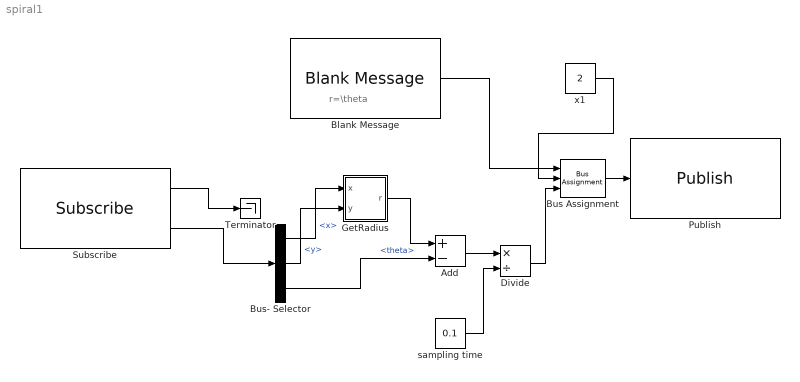
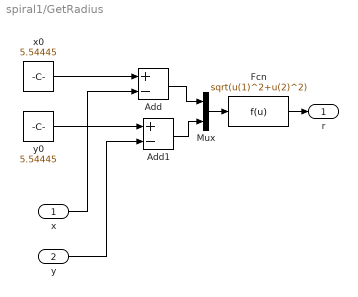
//
// Academic License - for use in teaching, academic research, and meeting
// course requirements at degree granting institutions only.  Not for
// government, commercial, or other organizational use.
//
// File: spiral1.cpp
//
// Code generated for Simulink model 'spiral1'.
//
// Model version                  : 1.1
// Simulink Coder version         : 24.2 (R2024b) 21-Jun-2024
// C/C++ source code generated on : Fri Jan 10 16:53:49 2025
//
// Target selection: ert.tlc
// Embedded hardware selection: Intel->x86-64 (Linux 64)
// Code generation objectives: Unspecified
// Validation result: Not run
//
#include "spiral1.h"
#include "spiral1_types.h"
#include <string.h>
#include "spiral1_private.h"
#include <math.h>
#include "rtwtypes.h"
#include "rmw/qos_profiles.h"
#include <stddef.h>

extern "C"
{

#include "rt_nonfinite.h"

}

real_T rt_powd_snf(real_T u0, real_T u1)
{
  real_T y;
  if (rtIsNaN(u0) || rtIsNaN(u1)) {
    y = (rtNaN);
  } else {
    real_T tmp;
    real_T tmp_0;
    tmp = fabs(u0);
    tmp_0 = fabs(u1);
    if (rtIsInf(u1)) {
      if (tmp == 1.0) {
        y = 1.0;
      } else if (tmp > 1.0) {
        if (u1 > 0.0) {
          y = (rtInf);
        } else {
          y = 0.0;
        }
      } else if (u1 > 0.0) {
        y = 0.0;
      } else {
        y = (rtInf);
      }
    } else if (tmp_0 == 0.0) {
      y = 1.0;
    } else if (tmp_0 == 1.0) {
      if (u1 > 0.0) {
        y = u0;
      } else {
        y = 1.0 / u0;
      }
    } else if (u1 == 2.0) {
      y = u0 * u0;
    } else if ((u1 == 0.5) && (u0 >= 0.0)) {
      y = sqrt(u0);
    } else if ((u0 < 0.0) && (u1 > floor(u1))) {
      y = (rtNaN);
    } else {
      y = pow(u0, u1);
    }
  }

  return y;
}

void spiral1::spiral1_Subscriber_setupImpl(const ros_slros2_internal_block_Sub_T
  *obj)
{
  rmw_qos_profile_t qos_profile;
  sJ4ih70VmKcvCeguWN0mNVF lifespan;
  sJ4ih70VmKcvCeguWN0mNVF liveliness_lease_duration;
  char_T b_zeroDelimTopic[14];
  static const char_T b_zeroDelimTopic_0[14] = "/turtle1/pose";
  qos_profile = rmw_qos_profile_default;

  // Start for MATLABSystem: '<S4>/SourceBlock'
  spiral1_B.deadline.sec = 0.0;
  spiral1_B.deadline.nsec = 0.0;
  lifespan.sec = 0.0;
  lifespan.nsec = 0.0;
  liveliness_lease_duration.sec = 0.0;
  liveliness_lease_duration.nsec = 0.0;
  SET_QOS_VALUES(qos_profile, RMW_QOS_POLICY_HISTORY_KEEP_LAST, (size_t)1.0,
                 RMW_QOS_POLICY_DURABILITY_VOLATILE,
                 RMW_QOS_POLICY_RELIABILITY_RELIABLE, spiral1_B.deadline,
                 lifespan, RMW_QOS_POLICY_LIVELINESS_AUTOMATIC,
                 liveliness_lease_duration, (bool)
                 obj->QOSAvoidROSNamespaceConventions);
  for (int32_T i = 0; i < 14; i++) {
    // Start for MATLABSystem: '<S4>/SourceBlock'
    b_zeroDelimTopic[i] = b_zeroDelimTopic_0[i];
  }

  Sub_spiral1_4.createSubscriber(&b_zeroDelimTopic[0], qos_profile);
}

void spiral1::spiral1_Publisher_setupImpl(const ros_slros2_internal_block_Pub_T *
  obj)
{
  rmw_qos_profile_t qos_profile;
  sJ4ih70VmKcvCeguWN0mNVF deadline;
  sJ4ih70VmKcvCeguWN0mNVF lifespan;
  sJ4ih70VmKcvCeguWN0mNVF liveliness_lease_duration;
  static const char_T b_zeroDelimTopic[17] = "/turtle1/cmd_vel";
  qos_profile = rmw_qos_profile_default;

  // Start for MATLABSystem: '<S3>/SinkBlock'
  deadline.sec = 0.0;
  deadline.nsec = 0.0;
  lifespan.sec = 0.0;
  lifespan.nsec = 0.0;
  liveliness_lease_duration.sec = 0.0;
  liveliness_lease_duration.nsec = 0.0;
  SET_QOS_VALUES(qos_profile, RMW_QOS_POLICY_HISTORY_KEEP_LAST, (size_t)1.0,
                 RMW_QOS_POLICY_DURABILITY_VOLATILE,
                 RMW_QOS_POLICY_RELIABILITY_RELIABLE, deadline, lifespan,
                 RMW_QOS_POLICY_LIVELINESS_AUTOMATIC, liveliness_lease_duration,
                 (bool)obj->QOSAvoidROSNamespaceConventions);
  for (int32_T i = 0; i < 17; i++) {
    // Start for MATLABSystem: '<S3>/SinkBlock'
    spiral1_B.b_zeroDelimTopic[i] = b_zeroDelimTopic[i];
  }

  Pub_spiral1_9.createPublisher(&spiral1_B.b_zeroDelimTopic[0], qos_profile);
}

// Model step function
void spiral1::step()
{
  SL_Bus_geometry_msgs_Pose2D rtb_SourceBlock_o2_0;
  boolean_T b_varargout_1;

  // BusAssignment: '<Root>/Bus Assignment'
  memset(&spiral1_B.BusAssignment, 0, sizeof(SL_Bus_geometry_msgs_Twist));

  // MATLABSystem: '<S4>/SourceBlock'
  b_varargout_1 = Sub_spiral1_4.getLatestMessage(&rtb_SourceBlock_o2_0);

  // Outputs for Enabled SubSystem: '<S4>/Enabled Subsystem' incorporates:
  //   EnablePort: '<S5>/Enable'

  // Start for MATLABSystem: '<S4>/SourceBlock'
  if (b_varargout_1) {
    // SignalConversion generated from: '<S5>/In1'
    spiral1_B.In1 = rtb_SourceBlock_o2_0;
  }

  // End of Start for MATLABSystem: '<S4>/SourceBlock'
  // End of Outputs for SubSystem: '<S4>/Enabled Subsystem'

  // BusAssignment: '<Root>/Bus Assignment' incorporates:
  //   Constant: '<Root>/sampling time'
  //   Constant: '<Root>/x1'
  //   Constant: '<S2>/x0'
  //   Constant: '<S2>/y0'
  //   Fcn: '<S2>/Fcn'
  //   Product: '<Root>/Divide'
  //   Sum: '<Root>/Add'
  //   Sum: '<S2>/Add'
  //   Sum: '<S2>/Add1'

  spiral1_B.BusAssignment.linear.x = 2.0;
  spiral1_B.BusAssignment.angular.z = (sqrt(rt_powd_snf(5.54445 -
    spiral1_B.In1.x, 2.0) + rt_powd_snf(5.54445 - spiral1_B.In1.y, 2.0)) -
    spiral1_B.In1.theta) / 0.1;

  // MATLABSystem: '<S3>/SinkBlock'
  Pub_spiral1_9.publish(&spiral1_B.BusAssignment);
}
